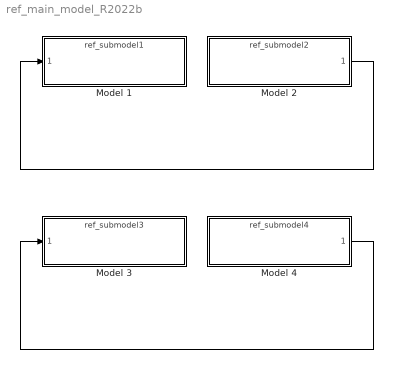
/*
 * ref_main_model_R2022b.cpp
 *
 * Academic License - for use in teaching, academic research, and meeting
 * course requirements at degree granting institutions only.  Not for
 * government, commercial, or other organizational use.
 *
 * Code generation for model "ref_main_model_R2022b".
 *
 * Model version              : 11.10
 * Simulink Coder version : 9.8 (R2022b) 13-May-2022
 * C++ source code generated on : Fri Sep 22 15:37:23 2023
 *
 * Target selection: slrealtime.tlc
 * Note: GRT includes extra infrastructure and instrumentation for prototyping
 * Embedded hardware selection: Intel->x86-64 (Linux 64)
 * Code generation objectives: Unspecified
 * Validation result: Not run
 */

#include "ref_main_model_R2022b.h"
#include "crl_mutex.hpp"
#include "ref_main_model_R2022b_cal.h"
#include "rtwtypes.h"
#include "ref_main_model_R2022b_private.h"
#include <cstring>
#define ref_submodel1_MDLREF_HIDE_CHILD_
#include "ref_submodel1.h"
#define ref_submodel2_MDLREF_HIDE_CHILD_
#include "ref_submodel2.h"
#define ref_submodel3_MDLREF_HIDE_CHILD_
#include "ref_submodel3.h"
#define ref_submodel4_MDLREF_HIDE_CHILD_
#include "ref_submodel4.h"

/* Tasks */
RT_MODEL_ref_main_model_R2022_T task_M_[4];
RT_MODEL_ref_main_model_R2022_T *task_M[4];

/* Child s-functions */
RTWSfcnInfo sfcnInfo_[4];
RTWSfcnInfo *sfcnInfo[4];

/* Timing bridge */
rtTimingBridge timingBridge[1];

/* Block signals (default storage) */
B_ref_main_model_R2022b_T ref_main_model_R2022b_B;

/* Block states (default storage) */
DW_ref_main_model_R2022b_T ref_main_model_R2022b_DW;

/* Real-time model */
RT_MODEL_ref_main_model_R2022_T ref_main_model_R2022b_M_ =
  RT_MODEL_ref_main_model_R2022_T();
RT_MODEL_ref_main_model_R2022_T *const ref_main_model_R2022b_M =
  &ref_main_model_R2022b_M_;

/* This function updates active task counters and model execution time. */
void AdvanceTaskCounters(void)
{
  /* Update absolute time for base rate */
  /* The "clockTick0" counts the number of times the code of this task has
   * been executed. The absolute time is the multiplication of "clockTick0"
   * and "Timing.stepSize0". Size of "clockTick0" ensures timer will not
   * overflow during the application lifespan selected.
   * Timer of this task consists of two 32 bit unsigned integers.
   * The two integers represent the low bits Timing.clockTick0 and the high bits
   * Timing.clockTickH0. When the low bit overflows to 0, the high bits increment.
   */
  if (!(++ref_main_model_R2022b_M->Timing.clockTick0)) {
    ++ref_main_model_R2022b_M->Timing.clockTickH0;
  }

  ref_main_model_R2022b_M->Timing.t[0] =
    ref_main_model_R2022b_M->Timing.clockTick0 *
    ref_main_model_R2022b_M->Timing.stepSize0 +
    ref_main_model_R2022b_M->Timing.clockTickH0 *
    ref_main_model_R2022b_M->Timing.stepSize0 * 4294967296.0;
}

/* OutputUpdate for Task: Periodic_Model1_500us */
void Periodic_Model1_500us_step(void)  /* Sample time: [0.0001s, 0.0s] */
{
  {
    int_T wrBufIdx;

    /* TaskTransBlk generated from: '<Root>/Model 1' */
    rtw_slrealtime_mutex_lock(ref_main_model_R2022b_DW.mw_buf_1);
    wrBufIdx = 1 - ref_main_model_R2022b_DW.fw_buf_1;
    rtw_slrealtime_mutex_unlock(ref_main_model_R2022b_DW.mw_buf_1);

    /* TaskTransBlk generated from: '<Root>/Model 1' */
    ref_main_model_R2022b_B.TmpTaskTransAtModel1Inport1 =
      ref_main_model_R2022b_DW.TmpTaskTransAtModel2Outport1_bu[wrBufIdx];

    /* ModelReference: '<Root>/Model 1' */
    ref_submodel1(&ref_main_model_R2022b_B.TmpTaskTransAtModel1Inport1);
  }

  /* Update absolute time for base rate */
  /* The "clockTick0" counts the number of times the code of this task has
   * been executed. The absolute time is the multiplication of "clockTick0"
   * and "Timing.stepSize0". Size of "clockTick0" ensures timer will not
   * overflow during the application lifespan selected.
   * Timer of this task consists of two 32 bit unsigned integers.
   * The two integers represent the low bits Timing.clockTick0 and the high bits
   * Timing.clockTickH0. When the low bit overflows to 0, the high bits increment.
   */
  if (!(++task_M[0]->Timing.clockTick0)) {
    ++task_M[0]->Timing.clockTickH0;
  }

  task_M[0]->Timing.t[0] = task_M[0]->Timing.clockTick0 * task_M[0]
    ->Timing.stepSize0 + task_M[0]->Timing.clockTickH0 * task_M[0]
    ->Timing.stepSize0 * 4294967296.0;
}

/* OutputUpdate for Task: Periodic_Model2_500us */
void Periodic_Model2_500us_step(void)  /* Sample time: [0.0001s, 0.0s] */
{
  /* ModelReference: '<Root>/Model 2' */
  ref_submodel2(&ref_main_model_R2022b_B.IO135_AI_CH1);

  /* TaskTransBlk generated from: '<Root>/Model 2' */
  ref_main_model_R2022b_DW.TmpTaskTransAtModel2Outport1_bu[ref_main_model_R2022b_DW.fw_buf_1]
    = ref_main_model_R2022b_B.IO135_AI_CH1;

  /* TaskTransBlk generated from: '<Root>/Model 2' */
  ref_main_model_R2022b_B.TmpTaskTransAtModel2Outport1 =
    ref_main_model_R2022b_DW.TmpTaskTransAtModel2Outport1_bu[ref_main_model_R2022b_DW.fw_buf_1];

  /* TaskTransBlk generated from: '<Root>/Model 2' */
  rtw_slrealtime_mutex_lock(ref_main_model_R2022b_DW.mw_buf_1);
  ref_main_model_R2022b_DW.fw_buf_1 = 1 - ref_main_model_R2022b_DW.fw_buf_1;
  rtw_slrealtime_mutex_unlock(ref_main_model_R2022b_DW.mw_buf_1);

  /* Update absolute time for base rate */
  /* The "clockTick0" counts the number of times the code of this task has
   * been executed. The absolute time is the multiplication of "clockTick0"
   * and "Timing.stepSize0". Size of "clockTick0" ensures timer will not
   * overflow during the application lifespan selected.
   * Timer of this task consists of two 32 bit unsigned integers.
   * The two integers represent the low bits Timing.clockTick0 and the high bits
   * Timing.clockTickH0. When the low bit overflows to 0, the high bits increment.
   */
  if (!(++task_M[1]->Timing.clockTick0)) {
    ++task_M[1]->Timing.clockTickH0;
  }

  task_M[1]->Timing.t[0] = task_M[1]->Timing.clockTick0 * task_M[1]
    ->Timing.stepSize0 + task_M[1]->Timing.clockTickH0 * task_M[1]
    ->Timing.stepSize0 * 4294967296.0;
}

/* OutputUpdate for Task: Periodic_Model3_400us */
void Periodic_Model3_400us_step(void)  /* Sample time: [0.0001s, 0.0s] */
{
  {
    int_T wrBufIdx;

    /* TaskTransBlk generated from: '<Root>/Model 3' */
    rtw_slrealtime_mutex_lock(ref_main_model_R2022b_DW.mw_buf_2);
    wrBufIdx = 1 - ref_main_model_R2022b_DW.fw_buf_2;
    rtw_slrealtime_mutex_unlock(ref_main_model_R2022b_DW.mw_buf_2);

    /* TaskTransBlk generated from: '<Root>/Model 3' */
    ref_main_model_R2022b_B.TmpTaskTransAtModel3Inport1 =
      ref_main_model_R2022b_DW.TmpTaskTransAtModel4Outport1_bu[wrBufIdx];

    /* ModelReference: '<Root>/Model 3' */
    ref_submodel3(&ref_main_model_R2022b_B.TmpTaskTransAtModel3Inport1);
  }

  /* Update absolute time for base rate */
  /* The "clockTick0" counts the number of times the code of this task has
   * been executed. The absolute time is the multiplication of "clockTick0"
   * and "Timing.stepSize0". Size of "clockTick0" ensures timer will not
   * overflow during the application lifespan selected.
   * Timer of this task consists of two 32 bit unsigned integers.
   * The two integers represent the low bits Timing.clockTick0 and the high bits
   * Timing.clockTickH0. When the low bit overflows to 0, the high bits increment.
   */
  if (!(++task_M[2]->Timing.clockTick0)) {
    ++task_M[2]->Timing.clockTickH0;
  }

  task_M[2]->Timing.t[0] = task_M[2]->Timing.clockTick0 * task_M[2]
    ->Timing.stepSize0 + task_M[2]->Timing.clockTickH0 * task_M[2]
    ->Timing.stepSize0 * 4294967296.0;
}

/* OutputUpdate for Task: Periodic_Model4_400us */
void Periodic_Model4_400us_step(void)  /* Sample time: [0.0001s, 0.0s] */
{
  /* ModelReference: '<Root>/Model 4' */
  ref_submodel4(&ref_main_model_R2022b_B.IO135_AI_CH1_a);

  /* TaskTransBlk generated from: '<Root>/Model 4' */
  ref_main_model_R2022b_DW.TmpTaskTransAtModel4Outport1_bu[ref_main_model_R2022b_DW.fw_buf_2]
    = ref_main_model_R2022b_B.IO135_AI_CH1_a;

  /* TaskTransBlk generated from: '<Root>/Model 4' */
  ref_main_model_R2022b_B.TmpTaskTransAtModel4Outport1 =
    ref_main_model_R2022b_DW.TmpTaskTransAtModel4Outport1_bu[ref_main_model_R2022b_DW.fw_buf_2];

  /* TaskTransBlk generated from: '<Root>/Model 4' */
  rtw_slrealtime_mutex_lock(ref_main_model_R2022b_DW.mw_buf_2);
  ref_main_model_R2022b_DW.fw_buf_2 = 1 - ref_main_model_R2022b_DW.fw_buf_2;
  rtw_slrealtime_mutex_unlock(ref_main_model_R2022b_DW.mw_buf_2);

  /* Update absolute time for base rate */
  /* The "clockTick0" counts the number of times the code of this task has
   * been executed. The absolute time is the multiplication of "clockTick0"
   * and "Timing.stepSize0". Size of "clockTick0" ensures timer will not
   * overflow during the application lifespan selected.
   * Timer of this task consists of two 32 bit unsigned integers.
   * The two integers represent the low bits Timing.clockTick0 and the high bits
   * Timing.clockTickH0. When the low bit overflows to 0, the high bits increment.
   */
  if (!(++task_M[3]->Timing.clockTick0)) {
    ++task_M[3]->Timing.clockTickH0;
  }

  task_M[3]->Timing.t[0] = task_M[3]->Timing.clockTick0 * task_M[3]
    ->Timing.stepSize0 + task_M[3]->Timing.clockTickH0 * task_M[3]
    ->Timing.stepSize0 * 4294967296.0;
}
